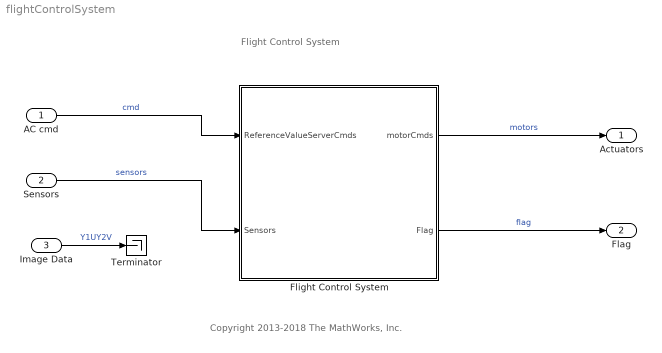
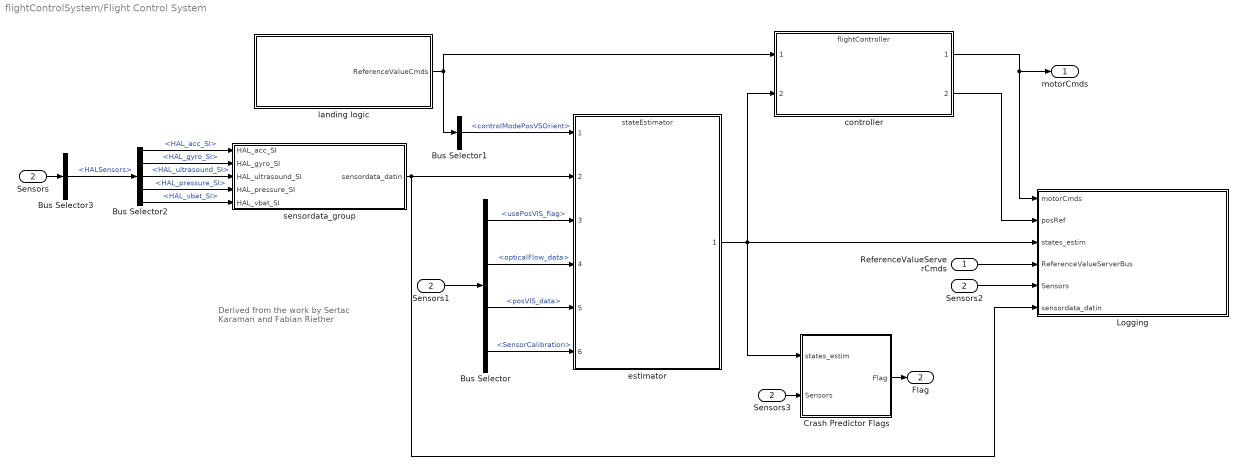
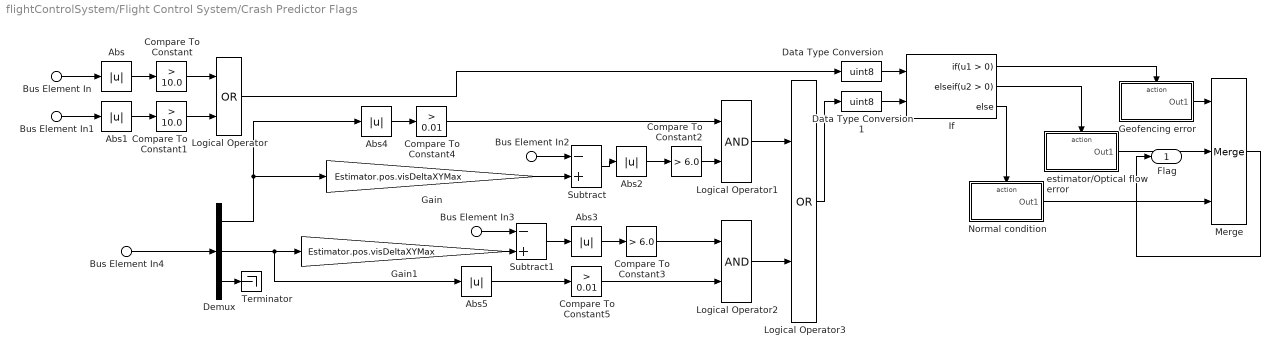
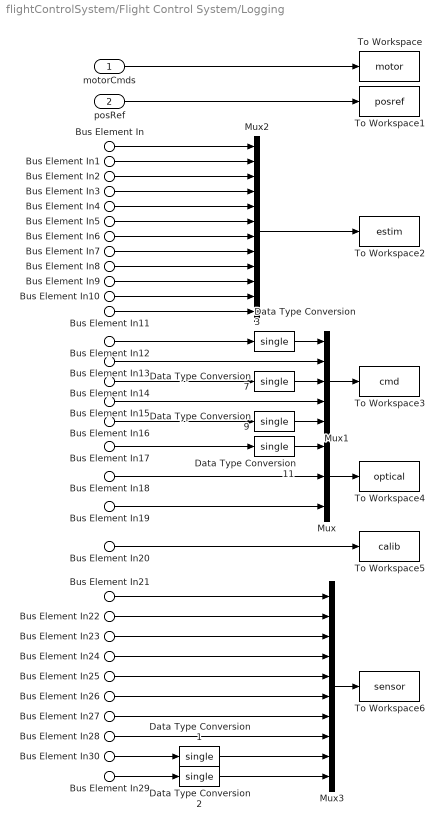
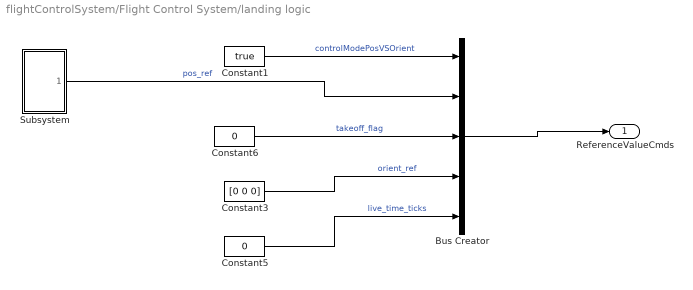
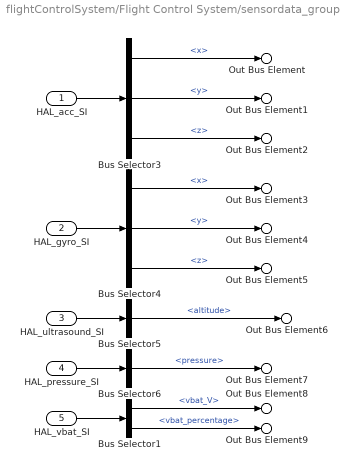
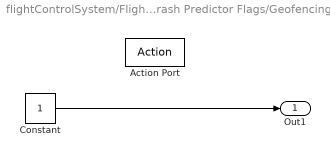
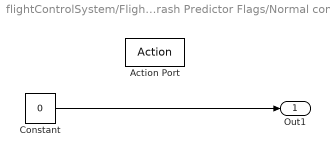
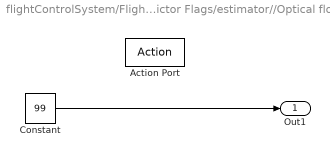
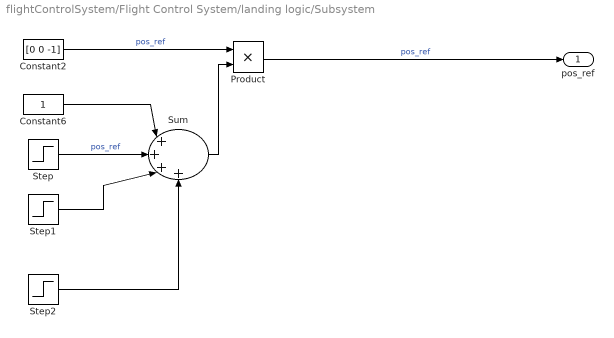
/*
 * File: flightControlSystem.c
 *
 * Code generated for Simulink model 'flightControlSystem'.
 *
 * Model version                  : 1.168
 * Simulink Coder version         : 9.0 (R2018b) 24-May-2018
 * C/C++ source code generated on : Wed Mar 18 13:04:25 2020
 *
 * Target selection: ert.tlc
 * Embedded hardware selection: ARM Compatible->ARM 9
 * Code generation objectives: Unspecified
 * Validation result: Not run
 */

#include "flightControlSystem.h"
#include "flightControlSystem_private.h"

/* Exported block signals */
CommandBus cmd_inport;                 /* '<Root>/AC cmd' */
SensorsBus sensor_inport;              /* '<Root>/Sensors' */
real32_T motors_outport[4];            /* '<S1>/controller' */
uint8_T flag_outport;                  /* '<S2>/Merge' */

/* Block signals (default storage) */
B_flightControlSystem_T flightControlSystem_B;

/* Block states (default storage) */
DW_flightControlSystem_T flightControlSystem_DW;

/* External inputs (root inport signals with default storage) */
ExtU_flightControlSystem_T flightControlSystem_U;

/* External outputs (root outports fed by signals with default storage) */
ExtY_flightControlSystem_T flightControlSystem_Y;

/* Real-time model */
RT_MODEL_flightControlSystem_T flightControlSystem_M_;
RT_MODEL_flightControlSystem_T *const flightControlSystem_M =
  &flightControlSystem_M_;

/*
 * Output and update for action system:
 *    '<S2>/Geofencing error'
 *    '<S2>/estimator//Optical flow error'
 *    '<S2>/Normal condition'
 */
void flightControlSystem_Geofencingerror(uint8_T *rty_Out1,
  P_Geofencingerror_flightControlSystem_T *localP)
{
  /* SignalConversion: '<S12>/OutportBuffer_InsertedFor_Out1_at_inport_0' incorporates:
   *  Constant: '<S12>/Constant'
   */
  *rty_Out1 = localP->Constant_Value;
}

/* Start for atomic system: '<S1>/Logging' */
void flightControlSystem_Logging_Start(RT_MODEL_flightControlSystem_T * const
  flightControlSystem_M, DW_Logging_flightControlSystem_T *localDW)
{
  /* Start for ToWorkspace: '<S3>/To Workspace2' */
  {
    static int_T rt_ToWksWidths[] = { 12 };

    static int_T rt_ToWksNumDimensions[] = { 1 };

    static int_T rt_ToWksDimensions[] = { 12 };

    static boolean_T rt_ToWksIsVarDims[] = { 0 };

    static void *rt_ToWksCurrSigDims[] = { (NULL) };

    static int_T rt_ToWksCurrSigDimsSize[] = { 4 };

    static BuiltInDTypeId rt_ToWksDataTypeIds[] = { SS_SINGLE };

    static int_T rt_ToWksComplexSignals[] = { 0 };

    static int_T rt_ToWksFrameData[] = { 0 };

    static RTWPreprocessingFcnPtr rt_ToWksLoggingPreprocessingFcnPtrs[] = {
      (NULL)
    };

    static const char_T *rt_ToWksLabels[] = { "" };

    static RTWLogSignalInfo rt_ToWksSignalInfo = {
      1,
      rt_ToWksWidths,
      rt_ToWksNumDimensions,
      rt_ToWksDimensions,
      rt_ToWksIsVarDims,
      rt_ToWksCurrSigDims,
      rt_ToWksCurrSigDimsSize,
      rt_ToWksDataTypeIds,
      rt_ToWksComplexSignals,
      rt_ToWksFrameData,
      rt_ToWksLoggingPreprocessingFcnPtrs,

      { rt_ToWksLabels },
      (NULL),
      (NULL),
      (NULL),

      { (NULL) },

      { (NULL) },
      (NULL),
      (NULL)
    };

    static const char_T rt_ToWksBlockName[] =
      "flightControlSystem/Flight Control System/Logging/To Workspace2";
    localDW->ToWorkspace2_PWORK.LoggedData = rt_CreateStructLogVar(
      flightControlSystem_M->rtwLogInfo,
      0.0,
      rtmGetTFinal(flightControlSystem_M),
      flightControlSystem_M->Timing.stepSize0,
      (&rtmGetErrorStatus(flightControlSystem_M)),
      "estim",
      1,
      0,
      1,
      0.005,
      &rt_ToWksSignalInfo,
      rt_ToWksBlockName);
    if (localDW->ToWorkspace2_PWORK.LoggedData == (NULL))
      return;
  }

  /* Start for ToWorkspace: '<S3>/To Workspace6' */
  {
    static int_T rt_ToWksWidths[] = { 10 };

    static int_T rt_ToWksNumDimensions[] = { 1 };

    static int_T rt_ToWksDimensions[] = { 10 };

    static boolean_T rt_ToWksIsVarDims[] = { 0 };

    static void *rt_ToWksCurrSigDims[] = { (NULL) };

    static int_T rt_ToWksCurrSigDimsSize[] = { 4 };

    static BuiltInDTypeId rt_ToWksDataTypeIds[] = { SS_SINGLE };

    static int_T rt_ToWksComplexSignals[] = { 0 };

    static int_T rt_ToWksFrameData[] = { 0 };

    static RTWPreprocessingFcnPtr rt_ToWksLoggingPreprocessingFcnPtrs[] = {
      (NULL)
    };

    static const char_T *rt_ToWksLabels[] = { "" };

    static RTWLogSignalInfo rt_ToWksSignalInfo = {
      1,
      rt_ToWksWidths,
      rt_ToWksNumDimensions,
      rt_ToWksDimensions,
      rt_ToWksIsVarDims,
      rt_ToWksCurrSigDims,
      rt_ToWksCurrSigDimsSize,
      rt_ToWksDataTypeIds,
      rt_ToWksComplexSignals,
      rt_ToWksFrameData,
      rt_ToWksLoggingPreprocessingFcnPtrs,

      { rt_ToWksLabels },
      (NULL),
      (NULL),
      (NULL),

      { (NULL) },

      { (NULL) },
      (NULL),
      (NULL)
    };

    static const char_T rt_ToWksBlockName[] =
      "flightControlSystem/Flight Control System/Logging/To Workspace6";
    localDW->ToWorkspace6_PWORK.LoggedData = rt_CreateStructLogVar(
      flightControlSystem_M->rtwLogInfo,
      0.0,
      rtmGetTFinal(flightControlSystem_M),
      flightControlSystem_M->Timing.stepSize0,
      (&rtmGetErrorStatus(flightControlSystem_M)),
      "sensor",
      1,
      0,
      1,
      0.005,
      &rt_ToWksSignalInfo,
      rt_ToWksBlockName);
    if (localDW->ToWorkspace6_PWORK.LoggedData == (NULL))
      return;
  }

  /* Start for ToWorkspace: '<S3>/To Workspace3' */
  {
    static int_T rt_ToWksWidths[] = { 9 };

    static int_T rt_ToWksNumDimensions[] = { 1 };

    static int_T rt_ToWksDimensions[] = { 9 };

    static boolean_T rt_ToWksIsVarDims[] = { 0 };

    static void *rt_ToWksCurrSigDims[] = { (NULL) };

    static int_T rt_ToWksCurrSigDimsSize[] = { 4 };

    static BuiltInDTypeId rt_ToWksDataTypeIds[] = { SS_SINGLE };

    static int_T rt_ToWksComplexSignals[] = { 0 };

    static int_T rt_ToWksFrameData[] = { 0 };

    static RTWPreprocessingFcnPtr rt_ToWksLoggingPreprocessingFcnPtrs[] = {
      (NULL)
    };

    static const char_T *rt_ToWksLabels[] = { "" };

    static RTWLogSignalInfo rt_ToWksSignalInfo = {
      1,
      rt_ToWksWidths,
      rt_ToWksNumDimensions,
      rt_ToWksDimensions,
      rt_ToWksIsVarDims,
      rt_ToWksCurrSigDims,
      rt_ToWksCurrSigDimsSize,
      rt_ToWksDataTypeIds,
      rt_ToWksComplexSignals,
      rt_ToWksFrameData,
      rt_ToWksLoggingPreprocessingFcnPtrs,

      { rt_ToWksLabels },
      (NULL),
      (NULL),
      (NULL),

      { (NULL) },

      { (NULL) },
      (NULL),
      (NULL)
    };

    static const char_T rt_ToWksBlockName[] =
      "flightControlSystem/Flight Control System/Logging/To Workspace3";
    localDW->ToWorkspace3_PWORK.LoggedData = rt_CreateStructLogVar(
      flightControlSystem_M->rtwLogInfo,
      0.0,
      rtmGetTFinal(flightControlSystem_M),
      flightControlSystem_M->Timing.stepSize0,
      (&rtmGetErrorStatus(flightControlSystem_M)),
      "cmd",
      1,
      0,
      1,
      0.005,
      &rt_ToWksSignalInfo,
      rt_ToWksBlockName);
    if (localDW->ToWorkspace3_PWORK.LoggedData == (NULL))
      return;
  }

  /* Start for ToWorkspace: '<S3>/To Workspace4' */
  {
    static int_T rt_ToWksWidths[] = { 8 };

    static int_T rt_ToWksNumDimensions[] = { 1 };

    static int_T rt_ToWksDimensions[] = { 8 };

    static boolean_T rt_ToWksIsVarDims[] = { 0 };

    static void *rt_ToWksCurrSigDims[] = { (NULL) };

    static int_T rt_ToWksCurrSigDimsSize[] = { 4 };

    static BuiltInDTypeId rt_ToWksDataTypeIds[] = { SS_SINGLE };

    static int_T rt_ToWksComplexSignals[] = { 0 };

    static int_T rt_ToWksFrameData[] = { 0 };

    static RTWPreprocessingFcnPtr rt_ToWksLoggingPreprocessingFcnPtrs[] = {
      (NULL)
    };

    static const char_T *rt_ToWksLabels[] = { "" };

    static RTWLogSignalInfo rt_ToWksSignalInfo = {
      1,
      rt_ToWksWidths,
      rt_ToWksNumDimensions,
      rt_ToWksDimensions,
      rt_ToWksIsVarDims,
      rt_ToWksCurrSigDims,
      rt_ToWksCurrSigDimsSize,
      rt_ToWksDataTypeIds,
      rt_ToWksComplexSignals,
      rt_ToWksFrameData,
      rt_ToWksLoggingPreprocessingFcnPtrs,

      { rt_ToWksLabels },
      (NULL),
      (NULL),
      (NULL),

      { (NULL) },

      { (NULL) },
      (NULL),
      (NULL)
    };

    static const char_T rt_ToWksBlockName[] =
      "flightControlSystem/Flight Control System/Logging/To Workspace4";
    localDW->ToWorkspace4_PWORK.LoggedData = rt_CreateStructLogVar(
      flightControlSystem_M->rtwLogInfo,
      0.0,
      rtmGetTFinal(flightControlSystem_M),
      flightControlSystem_M->Timing.stepSize0,
      (&rtmGetErrorStatus(flightControlSystem_M)),
      "optical",
      1,
      0,
      1,
      0.005,
      &rt_ToWksSignalInfo,
      rt_ToWksBlockName);
    if (localDW->ToWorkspace4_PWORK.LoggedData == (NULL))
      return;
  }

  /* Start for ToWorkspace: '<S3>/To Workspace5' */
  {
    static int_T rt_ToWksWidths[] = { 8 };

    static int_T rt_ToWksNumDimensions[] = { 1 };

    static int_T rt_ToWksDimensions[] = { 8 };

    static boolean_T rt_ToWksIsVarDims[] = { 0 };

    static void *rt_ToWksCurrSigDims[] = { (NULL) };

    static int_T rt_ToWksCurrSigDimsSize[] = { 4 };

    static BuiltInDTypeId rt_ToWksDataTypeIds[] = { SS_SINGLE };

    static int_T rt_ToWksComplexSignals[] = { 0 };

    static int_T rt_ToWksFrameData[] = { 0 };

    static RTWPreprocessingFcnPtr rt_ToWksLoggingPreprocessingFcnPtrs[] = {
      (NULL)
    };

    static const char_T *rt_ToWksLabels[] = { "SensorCalibration" };

    static RTWLogSignalInfo rt_ToWksSignalInfo = {
      1,
      rt_ToWksWidths,
      rt_ToWksNumDimensions,
      rt_ToWksDimensions,
      rt_ToWksIsVarDims,
      rt_ToWksCurrSigDims,
      rt_ToWksCurrSigDimsSize,
      rt_ToWksDataTypeIds,
      rt_ToWksComplexSignals,
      rt_ToWksFrameData,
      rt_ToWksLoggingPreprocessingFcnPtrs,

      { rt_ToWksLabels },
      (NULL),
      (NULL),
      (NULL),

      { (NULL) },

      { (NULL) },
      (NULL),
      (NULL)
    };

    static const char_T rt_ToWksBlockName[] =
      "flightControlSystem/Flight Control System/Logging/To Workspace5";
    localDW->ToWorkspace5_PWORK.LoggedData = rt_CreateStructLogVar(
      flightControlSystem_M->rtwLogInfo,
      0.0,
      rtmGetTFinal(flightControlSystem_M),
      flightControlSystem_M->Timing.stepSize0,
      (&rtmGetErrorStatus(flightControlSystem_M)),
      "calib",
      1,
      0,
      100,
      0.005,
      &rt_ToWksSignalInfo,
      rt_ToWksBlockName);
    if (localDW->ToWorkspace5_PWORK.LoggedData == (NULL))
      return;
  }

  /* Start for ToWorkspace: '<S3>/To Workspace' */
  {
    static int_T rt_ToWksWidths[] = { 4 };

    static int_T rt_ToWksNumDimensions[] = { 1 };

    static int_T rt_ToWksDimensions[] = { 4 };

    static boolean_T rt_ToWksIsVarDims[] = { 0 };

    static void *rt_ToWksCurrSigDims[] = { (NULL) };

    static int_T rt_ToWksCurrSigDimsSize[] = { 4 };

    static BuiltInDTypeId rt_ToWksDataTypeIds[] = { SS_SINGLE };

    static int_T rt_ToWksComplexSignals[] = { 0 };

    static int_T rt_ToWksFrameData[] = { 0 };

    static RTWPreprocessingFcnPtr rt_ToWksLoggingPreprocessingFcnPtrs[] = {
      (NULL)
    };

    static const char_T *rt_ToWksLabels[] = { "" };

    static RTWLogSignalInfo rt_ToWksSignalInfo = {
      1,
      rt_ToWksWidths,
      rt_ToWksNumDimensions,
      rt_ToWksDimensions,
      rt_ToWksIsVarDims,
      rt_ToWksCurrSigDims,
      rt_ToWksCurrSigDimsSize,
      rt_ToWksDataTypeIds,
      rt_ToWksComplexSignals,
      rt_ToWksFrameData,
      rt_ToWksLoggingPreprocessingFcnPtrs,

      { rt_ToWksLabels },
      (NULL),
      (NULL),
      (NULL),

      { (NULL) },

      { (NULL) },
      (NULL),
      (NULL)
    };

    static const char_T rt_ToWksBlockName[] =
      "flightControlSystem/Flight Control System/Logging/To Workspace";
    localDW->ToWorkspace_PWORK.LoggedData = rt_CreateStructLogVar(
      flightControlSystem_M->rtwLogInfo,
      0.0,
      rtmGetTFinal(flightControlSystem_M),
      flightControlSystem_M->Timing.stepSize0,
      (&rtmGetErrorStatus(flightControlSystem_M)),
      "motor",
      1,
      0,
      1,
      0.005,
      &rt_ToWksSignalInfo,
      rt_ToWksBlockName);
    if (localDW->ToWorkspace_PWORK.LoggedData == (NULL))
      return;
  }

  /* Start for ToWorkspace: '<S3>/To Workspace1' */
  {
    static int_T rt_ToWksWidths[] = { 8 };

    static int_T rt_ToWksNumDimensions[] = { 1 };

    static int_T rt_ToWksDimensions[] = { 8 };

    static boolean_T rt_ToWksIsVarDims[] = { 0 };

    static void *rt_ToWksCurrSigDims[] = { (NULL) };

    static int_T rt_ToWksCurrSigDimsSize[] = { 4 };

    static BuiltInDTypeId rt_ToWksDataTypeIds[] = { SS_SINGLE };

    static int_T rt_ToWksComplexSignals[] = { 0 };

    static int_T rt_ToWksFrameData[] = { 0 };

    static RTWPreprocessingFcnPtr rt_ToWksLoggingPreprocessingFcnPtrs[] = {
      (NULL)
    };

    static const char_T *rt_ToWksLabels[] = { "" };

    static RTWLogSignalInfo rt_ToWksSignalInfo = {
      1,
      rt_ToWksWidths,
      rt_ToWksNumDimensions,
      rt_ToWksDimensions,
      rt_ToWksIsVarDims,
      rt_ToWksCurrSigDims,
      rt_ToWksCurrSigDimsSize,
      rt_ToWksDataTypeIds,
      rt_ToWksComplexSignals,
      rt_ToWksFrameData,
      rt_ToWksLoggingPreprocessingFcnPtrs,

      { rt_ToWksLabels },
      (NULL),
      (NULL),
      (NULL),

      { (NULL) },

      { (NULL) },
      (NULL),
      (NULL)
    };

    static const char_T rt_ToWksBlockName[] =
      "flightControlSystem/Flight Control System/Logging/To Workspace1";
    localDW->ToWorkspace1_PWORK.LoggedData = rt_CreateStructLogVar(
      flightControlSystem_M->rtwLogInfo,
      0.0,
      rtmGetTFinal(flightControlSystem_M),
      flightControlSystem_M->Timing.stepSize0,
      (&rtmGetErrorStatus(flightControlSystem_M)),
      "posref",
      1,
      0,
      1,
      0.005,
      &rt_ToWksSignalInfo,
      rt_ToWksBlockName);
    if (localDW->ToWorkspace1_PWORK.LoggedData == (NULL))
      return;
  }
}

/* Output and update for atomic system: '<S1>/Logging' */
void flightControlSystem_Logging(RT_MODEL_flightControlSystem_T * const
  flightControlSystem_M, const real32_T rtu_motorCmds[4], const real32_T
  rtu_posRef[8], const statesEstim_t *rtu_states_estim_Inport_3, const
  CommandBus *rtu_ReferenceValueServerBus_Inport_4, const SensorsBus
  *rtu_Sensors_Inport_5, real32_T rtu_sensordata_datin_Inport_6, uint32_T
  rtu_sensordata_datin_Inport_6_d, real32_T rtu_sensordata_datin_Inport_6_e,
  real32_T rtu_sensordata_datin_Inport_6_c, real32_T
  rtu_sensordata_datin_Inport_6_cg, real32_T rtu_sensordata_datin_Inport_6_i,
  real32_T rtu_sensordata_datin_Inport_6_h, real32_T
  rtu_sensordata_datin_Inport_6_b, real32_T rtu_sensordata_datin_Inport_6_dz,
  real32_T rtu_sensordata_datin_Inport_6_n, B_Logging_flightControlSystem_T
  *localB, DW_Logging_flightControlSystem_T *localDW)
{
  /* local block i/o variables */
  real32_T rtb_SigConversion_InsertedFor_Sensors_BusSelector_BusSelector_i[8];
  real32_T rtb_DataTypeConversion7;
  real32_T rtb_DataTypeConversion11;
  int32_T i;

  /* SignalConversion: '<S3>/states_estim_BusSelector' */
  rtb_DataTypeConversion7 = rtu_states_estim_Inport_3->q;
  rtb_DataTypeConversion11 = rtu_states_estim_Inport_3->r;

  /* SignalConversion: '<S3>/TmpSignal ConversionAtTo Workspace2Inport1' incorporates:
   *  SignalConversion: '<S3>/states_estim_BusSelector'
   */
  localB->TmpSignalConversionAtToWorkspace2Inport1[0] =
    rtu_states_estim_Inport_3->X;
  localB->TmpSignalConversionAtToWorkspace2Inport1[1] =
    rtu_states_estim_Inport_3->Y;
  localB->TmpSignalConversionAtToWorkspace2Inport1[2] =
    rtu_states_estim_Inport_3->Z;
  localB->TmpSignalConversionAtToWorkspace2Inport1[3] =
    rtu_states_estim_Inport_3->yaw;
  localB->TmpSignalConversionAtToWorkspace2Inport1[4] =
    rtu_states_estim_Inport_3->pitch;
  localB->TmpSignalConversionAtToWorkspace2Inport1[5] =
    rtu_states_estim_Inport_3->roll;
  localB->TmpSignalConversionAtToWorkspace2Inport1[6] =
    rtu_states_estim_Inport_3->dx;
  localB->TmpSignalConversionAtToWorkspace2Inport1[7] =
    rtu_states_estim_Inport_3->dy;
  localB->TmpSignalConversionAtToWorkspace2Inport1[8] =
    rtu_states_estim_Inport_3->dz;
  localB->TmpSignalConversionAtToWorkspace2Inport1[9] =
    rtu_states_estim_Inport_3->p;
  localB->TmpSignalConversionAtToWorkspace2Inport1[10] = rtb_DataTypeConversion7;
  localB->TmpSignalConversionAtToWorkspace2Inport1[11] =
    rtb_DataTypeConversion11;

  /* ToWorkspace: '<S3>/To Workspace2' */
  {
    double locTime = flightControlSystem_M->Timing.taskTime0;
    ;
    rt_UpdateStructLogVar((StructLogVar *)localDW->ToWorkspace2_PWORK.LoggedData,
                          &locTime,
                          &localB->TmpSignalConversionAtToWorkspace2Inport1[0]);
  }

  /* DataTypeConversion: '<S3>/Data Type Conversion1' */
  rtb_DataTypeConversion11 = rtu_sensordata_datin_Inport_6;

  /* DataTypeConversion: '<S3>/Data Type Conversion2' */
  rtb_DataTypeConversion7 = (real32_T)rtu_sensordata_datin_Inport_6_d;

  /* SignalConversion: '<S3>/TmpSignal ConversionAtTo Workspace6Inport1' */
  localB->TmpSignalConversionAtToWorkspace6Inport1[0] =
    rtu_sensordata_datin_Inport_6_e;
  localB->TmpSignalConversionAtToWorkspace6Inport1[1] =
    rtu_sensordata_datin_Inport_6_c;
  localB->TmpSignalConversionAtToWorkspace6Inport1[2] =
    rtu_sensordata_datin_Inport_6_cg;
  localB->TmpSignalConversionAtToWorkspace6Inport1[3] =
    rtu_sensordata_datin_Inport_6_i;
  localB->TmpSignalConversionAtToWorkspace6Inport1[4] =
    rtu_sensordata_datin_Inport_6_h;
  localB->TmpSignalConversionAtToWorkspace6Inport1[5] =
    rtu_sensordata_datin_Inport_6_b;
  localB->TmpSignalConversionAtToWorkspace6Inport1[6] =
    rtu_sensordata_datin_Inport_6_dz;
  localB->TmpSignalConversionAtToWorkspace6Inport1[7] =
    rtu_sensordata_datin_Inport_6_n;
  localB->TmpSignalConversionAtToWorkspace6Inport1[8] = rtb_DataTypeConversion11;
  localB->TmpSignalConversionAtToWorkspace6Inport1[9] = rtb_DataTypeConversion7;

  /* ToWorkspace: '<S3>/To Workspace6' */
  {
    double locTime = flightControlSystem_M->Timing.taskTime0;
    ;
    rt_UpdateStructLogVar((StructLogVar *)localDW->ToWorkspace6_PWORK.LoggedData,
                          &locTime,
                          &localB->TmpSignalConversionAtToWorkspace6Inport1[0]);
  }

  /* DataTypeConversion: '<S3>/Data Type Conversion3' */
  rtb_DataTypeConversion11 =
    rtu_ReferenceValueServerBus_Inport_4->controlModePosVSOrient;

  /* DataTypeConversion: '<S3>/Data Type Conversion7' */
  rtb_DataTypeConversion7 = rtu_ReferenceValueServerBus_Inport_4->takeoff_flag;

  /* SignalConversion: '<S3>/TmpSignal ConversionAtTo Workspace3Inport1' incorporates:
   *  DataTypeConversion: '<S3>/Data Type Conversion9'
   *  SignalConversion: '<S3>/ReferenceValueServerBus_BusSelector'
   */
  localB->TmpSignalConversionAtToWorkspace3Inport1[0] = rtb_DataTypeConversion11;
  localB->TmpSignalConversionAtToWorkspace3Inport1[1] =
    rtu_ReferenceValueServerBus_Inport_4->pos_ref[0];
  localB->TmpSignalConversionAtToWorkspace3Inport1[2] =
    rtu_ReferenceValueServerBus_Inport_4->pos_ref[1];
  localB->TmpSignalConversionAtToWorkspace3Inport1[3] =
    rtu_ReferenceValueServerBus_Inport_4->pos_ref[2];
  localB->TmpSignalConversionAtToWorkspace3Inport1[4] = rtb_DataTypeConversion7;
  localB->TmpSignalConversionAtToWorkspace3Inport1[5] =
    rtu_ReferenceValueServerBus_Inport_4->orient_ref[0];
  localB->TmpSignalConversionAtToWorkspace3Inport1[6] =
    rtu_ReferenceValueServerBus_Inport_4->orient_ref[1];
  localB->TmpSignalConversionAtToWorkspace3Inport1[7] =
    rtu_ReferenceValueServerBus_Inport_4->orient_ref[2];
  localB->TmpSignalConversionAtToWorkspace3Inport1[8] = (real32_T)
    rtu_ReferenceValueServerBus_Inport_4->live_time_ticks;

  /* ToWorkspace: '<S3>/To Workspace3' */
  {
    double locTime = flightControlSystem_M->Timing.taskTime0;
    ;
    rt_UpdateStructLogVar((StructLogVar *)localDW->ToWorkspace3_PWORK.LoggedData,
                          &locTime,
                          &localB->TmpSignalConversionAtToWorkspace3Inport1[0]);
  }

  /* DataTypeConversion: '<S3>/Data Type Conversion11' */
  rtb_DataTypeConversion11 = rtu_Sensors_Inport_5->VisionSensors.usePosVIS_flag;

  /* SignalConversion: '<S3>/TmpSignal ConversionAtTo Workspace4Inport1' incorporates:
   *  SignalConversion: '<S3>/Sensors_BusSelector'
   */
  localB->TmpSignalConversionAtToWorkspace4Inport1[0] = rtb_DataTypeConversion11;
  localB->TmpSignalConversionAtToWorkspace4Inport1[1] =
    rtu_Sensors_Inport_5->VisionSensors.opticalFlow_data[0];
  localB->TmpSignalConversionAtToWorkspace4Inport1[2] =
    rtu_Sensors_Inport_5->VisionSensors.opticalFlow_data[1];
  localB->TmpSignalConversionAtToWorkspace4Inport1[3] =
    rtu_Sensors_Inport_5->VisionSensors.opticalFlow_data[2];
  localB->TmpSignalConversionAtToWorkspace4Inport1[4] =
    rtu_Sensors_Inport_5->VisionSensors.posVIS_data[0];
  localB->TmpSignalConversionAtToWorkspace4Inport1[5] =
    rtu_Sensors_Inport_5->VisionSensors.posVIS_data[1];
  localB->TmpSignalConversionAtToWorkspace4Inport1[6] =
    rtu_Sensors_Inport_5->VisionSensors.posVIS_data[2];
  localB->TmpSignalConversionAtToWorkspace4Inport1[7] =
    rtu_Sensors_Inport_5->VisionSensors.posVIS_data[3];

  /* ToWorkspace: '<S3>/To Workspace4' */
  {
    double locTime = flightControlSystem_M->Timing.taskTime0;
    ;
    rt_UpdateStructLogVar((StructLogVar *)localDW->ToWorkspace4_PWORK.LoggedData,
                          &locTime,
                          &localB->TmpSignalConversionAtToWorkspace4Inport1[0]);
  }

  /* SignalConversion: '<S3>/Sensors_BusSelector' */
  for (i = 0; i < 8; i++) {
    rtb_SigConversion_InsertedFor_Sensors_BusSelector_BusSelector_i[i] =
      rtu_Sensors_Inport_5->SensorCalibration[i];
  }

  /* ToWorkspace: '<S3>/To Workspace5' */
  {
    double locTime = flightControlSystem_M->Timing.taskTime0;
    ;
    rt_UpdateStructLogVar((StructLogVar *)localDW->ToWorkspace5_PWORK.LoggedData,
                          &locTime,
                          &rtb_SigConversion_InsertedFor_Sensors_BusSelector_BusSelector_i
                          [0]);
  }

  /* ToWorkspace: '<S3>/To Workspace' */
  {
    double locTime = flightControlSystem_M->Timing.taskTime0;
    ;
    rt_UpdateStructLogVar((StructLogVar *)localDW->ToWorkspace_PWORK.LoggedData,
                          &locTime, &rtu_motorCmds[0]);
  }

  /* ToWorkspace: '<S3>/To Workspace1' */
  {
    double locTime = flightControlSystem_M->Timing.taskTime0;
    ;
    rt_UpdateStructLogVar((StructLogVar *)localDW->ToWorkspace1_PWORK.LoggedData,
                          &locTime, &rtu_posRef[0]);
  }
}

/* System initialize for atomic system: '<Root>/Flight Control System' */
void flightControlSystem_FlightControlSystem_Init(uint8_T *rty_Flag,
  P_FlightControlSystem_flightControlSystem_T *localP)
{
  /* SystemInitialize for ModelReference: '<S1>/estimator' */
  stateEstimator_Init();

  /* SystemInitialize for ModelReference: '<S1>/controller' */
  flightController_Init();

  /* SystemInitialize for Merge: '<S2>/Merge' */
  *rty_Flag = localP->Merge_InitialOutput;
}

/* Start for atomic system: '<Root>/Flight Control System' */
void flightControlSystem_FlightControlSystem_Start
  (RT_MODEL_flightControlSystem_T * const flightControlSystem_M,
   DW_FlightControlSystem_flightControlSystem_T *localDW)
{
  /* Start for Atomic SubSystem: '<S1>/Logging' */
  flightControlSystem_Logging_Start(flightControlSystem_M, &localDW->Logging);

  /* End of Start for SubSystem: '<S1>/Logging' */
}

/* Output and update for atomic system: '<Root>/Flight Control System' */
void flightControlSystem_FlightControlSystem(RT_MODEL_flightControlSystem_T *
  const flightControlSystem_M, const CommandBus *rtu_ReferenceValueServerCmds,
  const SensorsBus *rtu_Sensors, real32_T rty_motorCmds[4], uint8_T *rty_Flag,
  B_FlightControlSystem_flightControlSystem_T *localB,
  DW_FlightControlSystem_flightControlSystem_T *localDW,
  P_FlightControlSystem_flightControlSystem_T *localP)
{
  /* Step: '<S15>/Step' incorporates:
   *  Step: '<S15>/Step1'
   *  Step: '<S15>/Step2'
   */
  localB->currentTime_tmp = flightControlSystem_M->Timing.taskTime0;
  if (localB->currentTime_tmp < localP->Step_Time) {
    localB->Sum = localP->Step_Y0;
  } else {
    localB->Sum = localP->Step_YFinal;
  }

  /* End of Step: '<S15>/Step' */

  /* Step: '<S15>/Step1' */
  if (localB->currentTime_tmp < localP->Step1_Time) {
    localB->currentTime = localP->Step1_Y0;
  } else {
    localB->currentTime = localP->Step1_YFinal;
  }

  /* Step: '<S15>/Step2' */
  if (localB->currentTime_tmp < localP->Step2_Time) {
    localB->currentTime_tmp = localP->Step2_Y0;
  } else {
    localB->currentTime_tmp = localP->Step2_YFinal;
  }

  /* Sum: '<S15>/Sum' incorporates:
   *  Constant: '<S15>/Constant6'
   */
  localB->Sum = ((localP->Constant6_Value + localB->Sum) + localB->currentTime)
    + localB->currentTime_tmp;

  /* BusCreator: '<S4>/Bus Creator' incorporates:
   *  Constant: '<S15>/Constant2'
   *  Constant: '<S4>/Constant1'
   *  Constant: '<S4>/Constant3'
   *  Constant: '<S4>/Constant5'
   *  Constant: '<S4>/Constant6'
   *  Product: '<S15>/Product'
   */
  localB->BusCreator.controlModePosVSOrient = localP->Constant1_Value;
  localB->BusCreator.pos_ref[0] = (real32_T)(localP->Constant2_Value[0] *
    localB->Sum);
  localB->BusCreator.pos_ref[1] = (real32_T)(localP->Constant2_Value[1] *
    localB->Sum);
  localB->BusCreator.pos_ref[2] = (real32_T)(localP->Constant2_Value[2] *
    localB->Sum);
  localB->BusCreator.takeoff_flag = localP->Constant6_Value_m;
  localB->BusCreator.orient_ref[0] = localP->Constant3_Value[0];
  localB->BusCreator.orient_ref[1] = localP->Constant3_Value[1];
  localB->BusCreator.orient_ref[2] = localP->Constant3_Value[2];
  localB->BusCreator.live_time_ticks = localP->Constant5_Value;

  /* SignalConversion: '<S5>/SigConversion_InsertedFor_Bus Selector3_at_outport_0' */
  localB->rtb_x_m = rtu_Sensors->HALSensors.HAL_acc_SI.x;

  /* SignalConversion: '<S5>/SigConversion_InsertedFor_Bus Selector3_at_outport_1' */
  localB->rtb_y_c = rtu_Sensors->HALSensors.HAL_acc_SI.y;

  /* SignalConversion: '<S5>/SigConversion_InsertedFor_Bus Selector3_at_outport_2' */
  localB->rtb_z_k = rtu_Sensors->HALSensors.HAL_acc_SI.z;

  /* SignalConversion: '<S5>/SigConversion_InsertedFor_Bus Selector4_at_outport_0' */
  localB->rtb_x_c_c = rtu_Sensors->HALSensors.HAL_gyro_SI.x;

  /* SignalConversion: '<S5>/SigConversion_InsertedFor_Bus Selector4_at_outport_1' */
  localB->rtb_y_n_b = rtu_Sensors->HALSensors.HAL_gyro_SI.y;

  /* SignalConversion: '<S5>/SigConversion_InsertedFor_Bus Selector4_at_outport_2' */
  localB->rtb_z_p_p = rtu_Sensors->HALSensors.HAL_gyro_SI.z;

  /* SignalConversion: '<S5>/SigConversion_InsertedFor_Bus Selector5_at_outport_0' */
  localB->rtb_altitude_c = rtu_Sensors->HALSensors.HAL_ultrasound_SI.altitude;

  /* SignalConversion: '<S5>/SigConversion_InsertedFor_Bus Selector6_at_outport_0' */
  localB->rtb_pressure_f = rtu_Sensors->HALSensors.HAL_pressure_SI.pressure;

  /* SignalConversion: '<S5>/SigConversion_InsertedFor_Bus Selector1_at_outport_0' */
  localB->rtb_vbat_V_g = rtu_Sensors->HALSensors.HAL_vbat_SI.vbat_V;

  /* SignalConversion: '<S5>/SigConversion_InsertedFor_Bus Selector1_at_outport_1' */
  localB->rtb_vbat_percentage_g =
    rtu_Sensors->HALSensors.HAL_vbat_SI.vbat_percentage;

  /* BusCreator: '<S1>/BusConversion_InsertedFor_estimator_at_inport_1' */
  localB->BusConversion_InsertedFor_estimator_at_inport_1_BusCreator1.ddx =
    localB->rtb_x_m;
  localB->BusConversion_InsertedFor_estimator_at_inport_1_BusCreator1.ddy =
    localB->rtb_y_c;
  localB->BusConversion_InsertedFor_estimator_at_inport_1_BusCreator1.ddz =
    localB->rtb_z_k;
  localB->BusConversion_InsertedFor_estimator_at_inport_1_BusCreator1.p =
    localB->rtb_x_c_c;
  localB->BusConversion_InsertedFor_estimator_at_inport_1_BusCreator1.q =
    localB->rtb_y_n_b;
  localB->BusConversion_InsertedFor_estimator_at_inport_1_BusCreator1.r =
    localB->rtb_z_p_p;
  localB->BusConversion_InsertedFor_estimator_at_inport_1_BusCreator1.altitude_sonar
    = localB->rtb_altitude_c;
  localB->BusConversion_InsertedFor_estimator_at_inport_1_BusCreator1.prs =
    localB->rtb_pressure_f;
  localB->BusConversion_InsertedFor_estimator_at_inport_1_BusCreator1.vbat_V =
    localB->rtb_vbat_V_g;
  localB->BusConversion_InsertedFor_estimator_at_inport_1_BusCreator1.vbat_percentage
    = localB->rtb_vbat_percentage_g;

  /* ModelReference: '<S1>/estimator' */
  stateEstimator_run(localB->BusCreator.controlModePosVSOrient,
                     &localB->BusConversion_InsertedFor_estimator_at_inport_1_BusCreator1,
                     rtu_Sensors->VisionSensors.usePosVIS_flag,
                     &rtu_Sensors->VisionSensors.opticalFlow_data[0],
                     &rtu_Sensors->VisionSensors.posVIS_data[0],
                     &localB->estimator, &rtu_Sensors->SensorCalibration[0]);

  /* ModelReference: '<S1>/controller' */
  flightController_run(&localB->BusCreator, &localB->estimator, &rty_motorCmds[0],
                       &localB->controller_o2[0]);

  /* Outputs for Atomic SubSystem: '<S1>/Logging' */
  flightControlSystem_Logging(flightControlSystem_M, rty_motorCmds,
    localB->controller_o2, &localB->estimator, rtu_ReferenceValueServerCmds,
    rtu_Sensors, localB->rtb_vbat_V_g, localB->rtb_vbat_percentage_g,
    localB->rtb_x_m, localB->rtb_y_c, localB->rtb_z_k, localB->rtb_x_c_c,
    localB->rtb_y_n_b, localB->rtb_z_p_p, localB->rtb_altitude_c,
    localB->rtb_pressure_f, &localB->Logging, &localDW->Logging);

  /* End of Outputs for SubSystem: '<S1>/Logging' */

  /* If: '<S2>/If' incorporates:
   *  Abs: '<S2>/Abs'
   *  Abs: '<S2>/Abs1'
   *  Abs: '<S2>/Abs2'
   *  Abs: '<S2>/Abs3'
   *  Abs: '<S2>/Abs4'
   *  Abs: '<S2>/Abs5'
   *  Constant: '<S10>/Constant'
   *  Constant: '<S11>/Constant'
   *  Constant: '<S6>/Constant'
   *  Constant: '<S7>/Constant'
   *  Constant: '<S8>/Constant'
   *  Constant: '<S9>/Constant'
   *  Gain: '<S2>/Gain'
   *  Gain: '<S2>/Gain1'
   *  Logic: '<S2>/Logical Operator'
   *  Logic: '<S2>/Logical Operator1'
   *  Logic: '<S2>/Logical Operator2'
   *  Logic: '<S2>/Logical Operator3'
   *  RelationalOperator: '<S10>/Compare'
   *  RelationalOperator: '<S11>/Compare'
   *  RelationalOperator: '<S6>/Compare'
   *  RelationalOperator: '<S7>/Compare'
   *  RelationalOperator: '<S8>/Compare'
   *  RelationalOperator: '<S9>/Compare'
   *  Sum: '<S2>/Subtract'
   *  Sum: '<S2>/Subtract1'
   */
  if (((real32_T)fabs(localB->estimator.X) > localP->CompareToConstant_const) ||
      ((real32_T)fabs(localB->estimator.Y) > localP->CompareToConstant1_const))
  {
    /* Outputs for IfAction SubSystem: '<S2>/Geofencing error' incorporates:
     *  ActionPort: '<S12>/Action Port'
     */
    flightControlSystem_Geofencingerror(rty_Flag, &localP->Geofencingerror);

    /* End of Outputs for SubSystem: '<S2>/Geofencing error' */
  } else if (((((real32_T)fabs(rtu_Sensors->VisionSensors.opticalFlow_data[0]) >
                localP->CompareToConstant4_const) && ((real32_T)fabs
                (localP->Gain_Gain * rtu_Sensors->
                 VisionSensors.opticalFlow_data[0] - localB->estimator.dx) >
                localP->CompareToConstant2_const)) || (((real32_T)fabs
                (localP->Gain1_Gain *
                 rtu_Sensors->VisionSensors.opticalFlow_data[1] -
                 localB->estimator.dy) > localP->CompareToConstant3_const) &&
               ((real32_T)fabs(rtu_Sensors->VisionSensors.opticalFlow_data[1]) >
                localP->CompareToConstant5_const))) > 0) {
    /* Outputs for IfAction SubSystem: '<S2>/estimator//Optical flow error' incorporates:
     *  ActionPort: '<S14>/Action Port'
     */
    flightControlSystem_Geofencingerror(rty_Flag,
      &localP->estimatorOpticalflowerror);

    /* End of Outputs for SubSystem: '<S2>/estimator//Optical flow error' */
  } else {
    /* Outputs for IfAction SubSystem: '<S2>/Normal condition' incorporates:
     *  ActionPort: '<S13>/Action Port'
     */
    flightControlSystem_Geofencingerror(rty_Flag, &localP->Normalcondition);

    /* End of Outputs for SubSystem: '<S2>/Normal condition' */
  }

  /* End of If: '<S2>/If' */
}

/* Model step function */
void flightControlSystem_step(void)
{
  /* Outputs for Atomic SubSystem: '<Root>/Flight Control System' */

  /* Inport: '<Root>/AC cmd' incorporates:
   *  Inport: '<Root>/Sensors'
   */
  flightControlSystem_FlightControlSystem(flightControlSystem_M, &cmd_inport,
    &sensor_inport, motors_outport, &flag_outport,
    &flightControlSystem_B.FlightControlSystem,
    &flightControlSystem_DW.FlightControlSystem,
    &flightControlSystem_P.FlightControlSystem);

  /* End of Outputs for SubSystem: '<Root>/Flight Control System' */

  /* Outport: '<Root>/Actuators' */
  flightControlSystem_Y.Actuators[0] = motors_outport[0];
  flightControlSystem_Y.Actuators[1] = motors_outport[1];
  flightControlSystem_Y.Actuators[2] = motors_outport[2];
  flightControlSystem_Y.Actuators[3] = motors_outport[3];

  /* Outport: '<Root>/Flag' */
  flightControlSystem_Y.Flag = flag_outport;

  /* Matfile logging */
  rt_UpdateTXYLogVars(flightControlSystem_M->rtwLogInfo,
                      (&flightControlSystem_M->Timing.taskTime0));

  /* signal main to stop simulation */
  {                                    /* Sample time: [0.005s, 0.0s] */
    if ((rtmGetTFinal(flightControlSystem_M)!=-1) &&
        !((rtmGetTFinal(flightControlSystem_M)-
           flightControlSystem_M->Timing.taskTime0) >
          flightControlSystem_M->Timing.taskTime0 * (DBL_EPSILON))) {
      rtmSetErrorStatus(flightControlSystem_M, "Simulation finished");
    }
  }

  /* Update absolute time for base rate */
  /* The "clockTick0" counts the number of times the code of this task has
   * been executed. The absolute time is the multiplication of "clockTick0"
   * and "Timing.stepSize0". Size of "clockTick0" ensures timer will not
   * overflow during the application lifespan selected.
   */
  flightControlSystem_M->Timing.taskTime0 =
    (++flightControlSystem_M->Timing.clockTick0) *
    flightControlSystem_M->Timing.stepSize0;
}
